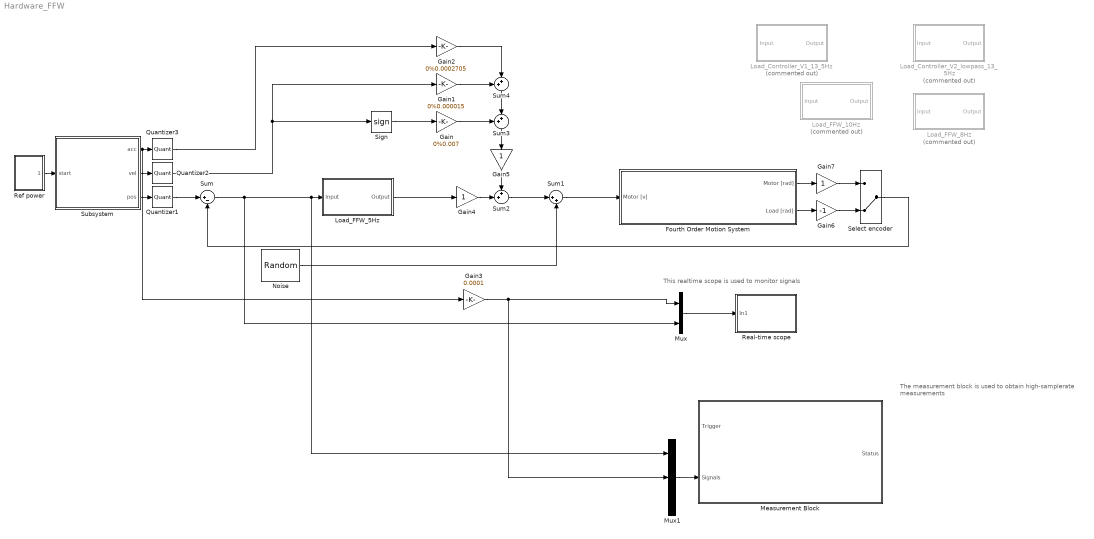
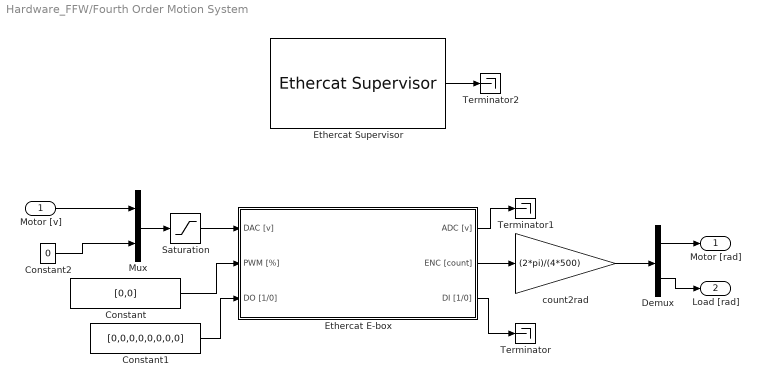
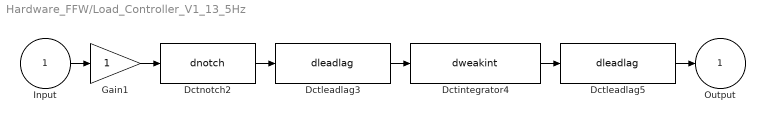
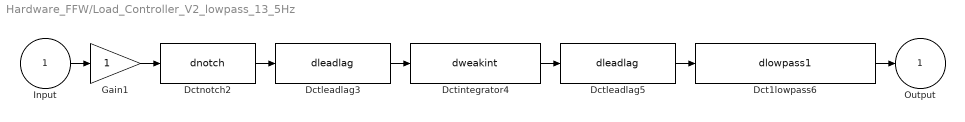
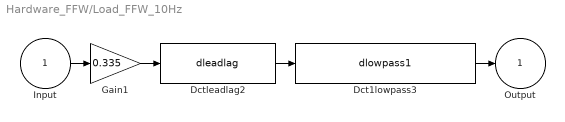
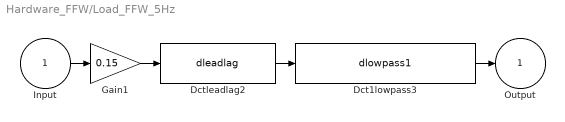
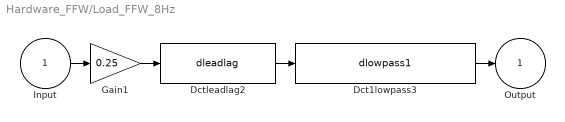
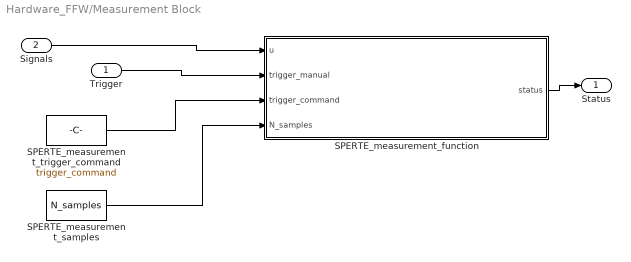
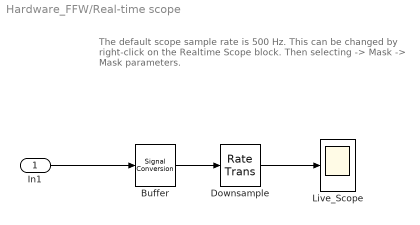
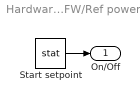
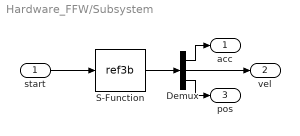
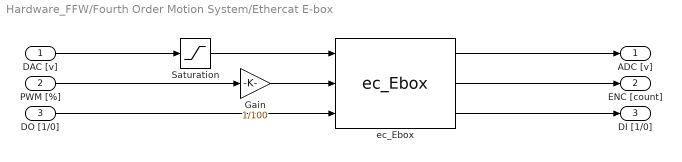
== matlab function Hardware_FFW/Measurement Block/SPERTE_measurement_function ==
function status = perform_measurement(u, trigger_manual, trigger_command, triggertype, N_samples)

%% Persistent variables
persistent fileID NF busy NS

% Init parameters
if isempty(NF)
    NF = int16(0);
end
if isempty(NS)
    NS = uint32(0);
end
if isempty(fileID)
    fileID = 0;
end
if isempty(busy)
    busy = uint8(0);
end

%% Check the triggers
if ( (triggertype == 0 && trigger_manual == 1) || (triggertype == 1 && trigger_command == 1) || (triggertype == 2 && (trigger_command == 1 || trigger_manual == 1) ) )
    if busy == 1
        % We are already busy, nothing to do
    else
        % We should start a new one
        fileID = fopen(sprintf('measurement_%d.bin',NF),'w');  
        NF = NF + 1;
        busy = uint8(1);
        NS = uint32(0);
    end
end

% We have started a measurement
if busy == 1
    if NS < N_samples 
        % Here we write the sample, in single precision float
        fwrite(fileID,u,'single');
        NS = NS + uint32(1);
    else
       % We have N samples already, we are done
       fclose(fileID);
       busy = uint8(0);
       NS = uint32(0);
    end
      
end
    % Output state
    status = uint8(busy);
end

/*
 * Hardware_FFW.c
 *
 * Academic License - for use in teaching, academic research, and meeting
 * course requirements at degree granting institutions only.  Not for
 * government, commercial, or other organizational use.
 *
 * Code generation for model "Hardware_FFW".
 *
 * Model version              : 14.20
 * Simulink Coder version : 25.1 (R2025a) 21-Nov-2024
 * C source code generated on : Tue Oct 21 10:39:02 2025
 *
 * Target selection: ert.tlc
 * Note: GRT includes extra infrastructure and instrumentation for prototyping
 * Embedded hardware selection: ARM Compatible->ARM Cortex-A (32-bit)
 * Code generation objectives: Unspecified
 * Validation result: Not run
 */

#include "Hardware_FFW.h"
#include "Hardware_FFW_types.h"
#include "rtwtypes.h"
#include <string.h>
#include <math.h>
#include "rt_nonfinite.h"
#include "Hardware_FFW_private.h"
#include <stddef.h>
#include <stdio.h>
#include <stdlib.h>

/* Named constants for MATLAB Function: '<S3>/SPERTE_measurement_function' */
#define Hardware_FFW_CALL_EVENT        (-1)

/* Block signals (default storage) */
B_Hardware_FFW_T Hardware_FFW_B;

/* Block states (default storage) */
DW_Hardware_FFW_T Hardware_FFW_DW;

/* Real-time model */
static RT_MODEL_Hardware_FFW_T Hardware_FFW_M_;
RT_MODEL_Hardware_FFW_T *const Hardware_FFW_M = &Hardware_FFW_M_;

/* Forward declaration for local functions */
static void Hardware_FFW_emxInit_char_T(emxArray_char_T_Hardware_FFW_T
  **pEmxArray, int32_T numDimensions);
static void Hardwa_emxEnsureCapacity_char_T(emxArray_char_T_Hardware_FFW_T
  *emxArray, int32_T oldNumel);
static void Hardware_FFW_emxFree_char_T(emxArray_char_T_Hardware_FFW_T
  **pEmxArray);
static int8_T Hardware_FFW_filedata(void);
static int8_T Hardware_FFW_cfopen(const emxArray_char_T_Hardware_FFW_T
  *cfilename, const char_T *cpermission);
static int32_T Hardware_FFW_cfclose(real_T fid);
static void rate_monotonic_scheduler(void);

/*
 * Writes out MAT-file header.  Returns success or failure.
 * Returns:
 * 0 - success
 * 1 - failure
 */
int_T rt_WriteMat4FileHeader(FILE *fp, int32_T m, int32_T n, const char *name)
{
  typedef enum { ELITTLE_ENDIAN, EBIG_ENDIAN } ByteOrder;

  int16_T one = 1;
  ByteOrder byteOrder = (*((int8_T *)&one)==1) ? ELITTLE_ENDIAN : EBIG_ENDIAN;
  int32_T type = (byteOrder == ELITTLE_ENDIAN) ? 0: 1000;
  int32_T imagf = 0;
  int32_T name_len = (int32_T)strlen(name) + 1;
  if ((fwrite(&type, sizeof(int32_T), 1, fp) == 0) ||
      (fwrite(&m, sizeof(int32_T), 1, fp) == 0) ||
      (fwrite(&n, sizeof(int32_T), 1, fp) == 0) ||
      (fwrite(&imagf, sizeof(int32_T), 1, fp) == 0) ||
      (fwrite(&name_len, sizeof(int32_T), 1, fp) == 0) ||
      (fwrite(name, sizeof(char), name_len, fp) == 0)) {
    return(1);
  } else {
    return(0);
  }
}                                      /* end rt_WriteMat4FileHeader */

/*
 * Set which subrates need to run this base step (base rate always runs).
 * This function must be called prior to calling the model step function
 * in order to remember which rates need to run this base step.  The
 * buffering of events allows for overlapping preemption.
 */
void Hardware_FFW_SetEventsForThisBaseStep(boolean_T *eventFlags)
{
  /* Task runs when its counter is zero, computed via rtmStepTask macro */
  eventFlags[2] = ((boolean_T)rtmStepTask(Hardware_FFW_M, 2));
}

/*
 *         This function updates active task flag for each subrate
 *         and rate transition flags for tasks that exchange data.
 *         The function assumes rate-monotonic multitasking scheduler.
 *         The function must be called at model base rate so that
 *         the generated code self-manages all its subrates and rate
 *         transition flags.
 */
static void rate_monotonic_scheduler(void)
{
  /* To ensure a deterministic data transfer between two rates,
   * data is transferred at the priority of a fast task and the frequency
   * of the slow task.  The following flags indicate when the data transfer
   * happens.  That is, a rate interaction flag is set true when both rates
   * will run, and false otherwise.
   */

  /* tid 1 shares data with slower tid rate: 2 */
  if (Hardware_FFW_M->Timing.TaskCounters.TID[1] == 0) {
    Hardware_FFW_M->Timing.RateInteraction.TID1_2 =
      (Hardware_FFW_M->Timing.TaskCounters.TID[2] == 0);

    /* update PerTaskSampleHits matrix for non-inline sfcn */
    Hardware_FFW_M->Timing.perTaskSampleHits[5] =
      Hardware_FFW_M->Timing.RateInteraction.TID1_2;
  }

  /* Compute which subrates run during the next base time step.  Subrates
   * are an integer multiple of the base rate counter.  Therefore, the subtask
   * counter is reset when it reaches its limit (zero means run).
   */
  (Hardware_FFW_M->Timing.TaskCounters.TID[2])++;
  if ((Hardware_FFW_M->Timing.TaskCounters.TID[2]) > 7) {/* Sample time: [0.002s, 0.0s] */
    Hardware_FFW_M->Timing.TaskCounters.TID[2] = 0;
  }
}

real_T rt_urand_Upu32_Yd_f_pw_snf(uint32_T *u)
{
  uint32_T hi;
  uint32_T lo;

  /* Uniform random number generator (random number between 0 and 1)

     #define IA      16807                      magic multiplier = 7^5
     #define IM      2147483647                 modulus = 2^31-1
     #define IQ      127773                     IM div IA
     #define IR      2836                       IM modulo IA
     #define S       4.656612875245797e-10      reciprocal of 2^31-1
     test = IA * (seed % IQ) - IR * (seed/IQ)
     seed = test < 0 ? (test + IM) : test
     return (seed*S)
   */
  lo = *u % 127773U * 16807U;
  hi = *u / 127773U * 2836U;
  if (lo < hi) {
    *u = 2147483647U - (hi - lo);
  } else {
    *u = lo - hi;
  }

  return (real_T)*u * 4.6566128752457969E-10;
}

real_T rt_nrand_Upu32_Yd_f_pw_snf(uint32_T *u)
{
  real_T si;
  real_T sr;
  real_T y;

  /* Normal (Gaussian) random number generator */
  do {
    sr = 2.0 * rt_urand_Upu32_Yd_f_pw_snf(u) - 1.0;
    si = 2.0 * rt_urand_Upu32_Yd_f_pw_snf(u) - 1.0;
    si = sr * sr + si * si;
  } while (si > 1.0);

  y = sqrt(-2.0 * log(si) / si) * sr;
  return y;
}

real_T rt_roundd_snf(real_T u)
{
  real_T y;
  if (fabs(u) < 4.503599627370496E+15) {
    if (u >= 0.5) {
      y = floor(u + 0.5);
    } else if (u > -0.5) {
      y = u * 0.0;
    } else {
      y = ceil(u - 0.5);
    }
  } else {
    y = u;
  }

  return y;
}

static void Hardware_FFW_emxInit_char_T(emxArray_char_T_Hardware_FFW_T
  **pEmxArray, int32_T numDimensions)
{
  emxArray_char_T_Hardware_FFW_T *emxArray;
  int32_T i;
  *pEmxArray = (emxArray_char_T_Hardware_FFW_T *)malloc(sizeof
    (emxArray_char_T_Hardware_FFW_T));
  emxArray = *pEmxArray;
  emxArray->data = (char_T *)NULL;
  emxArray->numDimensions = numDimensions;
  emxArray->size = (int32_T *)malloc(sizeof(int32_T) * (uint32_T)numDimensions);
  emxArray->allocatedSize = 0;
  emxArray->canFreeData = true;
  for (i = 0; i < numDimensions; i++) {
    emxArray->size[i] = 0;
  }
}

static void Hardwa_emxEnsureCapacity_char_T(emxArray_char_T_Hardware_FFW_T
  *emxArray, int32_T oldNumel)
{
  int32_T i;
  int32_T newNumel;
  void *newData;
  if (oldNumel < 0) {
    oldNumel = 0;
  }

  newNumel = 1;
  for (i = 0; i < emxArray->numDimensions; i++) {
    newNumel *= emxArray->size[i];
  }

  if (newNumel > emxArray->allocatedSize) {
    i = emxArray->allocatedSize;
    if (i < 16) {
      i = 16;
    }

    while (i < newNumel) {
      if (i > 1073741823) {
        i = MAX_int32_T;
      } else {
        i <<= 1;
      }
    }

    newData = malloc((uint32_T)i * sizeof(char_T));
    if (emxArray->data != NULL) {
      memcpy(newData, emxArray->data, sizeof(char_T) * (uint32_T)oldNumel);
      if (emxArray->canFreeData) {
        free(emxArray->data);
      }
    }

    emxArray->data = (char_T *)newData;
    emxArray->allocatedSize = i;
    emxArray->canFreeData = true;
  }
}

static void Hardware_FFW_emxFree_char_T(emxArray_char_T_Hardware_FFW_T
  **pEmxArray)
{
  if (*pEmxArray != (emxArray_char_T_Hardware_FFW_T *)NULL) {
    if (((*pEmxArray)->data != (char_T *)NULL) && (*pEmxArray)->canFreeData) {
      free((*pEmxArray)->data);
    }

    free((*pEmxArray)->size);
    free(*pEmxArray);
    *pEmxArray = (emxArray_char_T_Hardware_FFW_T *)NULL;
  }
}

/* Function for MATLAB Function: '<S3>/SPERTE_measurement_function' */
static int8_T Hardware_FFW_filedata(void)
{
  int32_T k;
  int8_T f;
  boolean_T exitg1;
  f = 0;
  k = 1;
  exitg1 = false;
  while ((!exitg1) && (k - 1 < 20)) {
    if (Hardware_FFW_DW.eml_openfiles[(int8_T)k - 1] == NULL) {
      f = (int8_T)k;
      exitg1 = true;
    } else {
      k++;
    }
  }

  return f;
}

/* Function for MATLAB Function: '<S3>/SPERTE_measurement_function' */
static int8_T Hardware_FFW_cfopen(const emxArray_char_T_Hardware_FFW_T
  *cfilename, const char_T *cpermission)
{
  FILE *filestar;
  emxArray_char_T_Hardware_FFW_T *ccfilename;
  int32_T loop_ub;
  int8_T fileid;
  int8_T j;
  fileid = -1;
  j = Hardware_FFW_filedata();
  if (j >= 1) {
    Hardware_FFW_emxInit_char_T(&ccfilename, 2);
    loop_ub = ccfilename->size[0] * ccfilename->size[1];
    ccfilename->size[0] = 1;
    ccfilename->size[1] = cfilename->size[1] + 1;
    Hardwa_emxEnsureCapacity_char_T(ccfilename, loop_ub);
    loop_ub = cfilename->size[1];
    if (loop_ub - 1 >= 0) {
      memcpy(&ccfilename->data[0], &cfilename->data[0], (uint32_T)loop_ub *
             sizeof(char_T));
    }

    ccfilename->data[cfilename->size[1]] = '\x00';
    filestar = fopen(&ccfilename->data[0], cpermission);
    Hardware_FFW_emxFree_char_T(&ccfilename);
    if (filestar != NULL) {
      Hardware_FFW_DW.eml_openfiles[j - 1] = filestar;
      Hardware_FFW_DW.eml_autoflush[j - 1] = true;
      loop_ub = j + 2;
      if (j + 2 > 127) {
        loop_ub = 127;
      }

      fileid = (int8_T)loop_ub;
    }
  }

  return fileid;
}

/* Function for MATLAB Function: '<S3>/SPERTE_measurement_function' */
static int32_T Hardware_FFW_cfclose(real_T fid)
{
  FILE *f;
  int32_T cst;
  int32_T st;
  int8_T b_fileid;
  int8_T fileid;
  st = -1;
  fileid = (int8_T)fid;
  if (((int8_T)fid < 0) || (fid != (int8_T)fid)) {
    fileid = -1;
  }

  b_fileid = fileid;
  if (fileid < 0) {
    b_fileid = -1;
  }

  if (b_fileid >= 3) {
    f = Hardware_FFW_DW.eml_openfiles[b_fileid - 3];
  } else if (b_fileid == 0) {
    f = stdin;
  } else if (b_fileid == 1) {
    f = stdout;
  } else if (b_fileid == 2) {
    f = stderr;
  } else {
    f = NULL;
  }

  if ((f != NULL) && (fileid >= 3)) {
    cst = fclose(f);
    if (cst == 0) {
      st = 0;
      Hardware_FFW_DW.eml_openfiles[fileid - 3] = NULL;
      Hardware_FFW_DW.eml_autoflush[fileid - 3] = true;
    }
  }

  return st;
}

/* Model step function for TID0 */
void Hardware_FFW_step0(void)          /* Sample time: [0.0s, 0.0s] */
{
  FILE *f;
  size_t bytesOutSizet;
  emxArray_char_T_Hardware_FFW_T *str;
  emxArray_char_T_Hardware_FFW_T *str_0;
  real_T rtb_Quantizer1;
  real_T tmp;
  int32_T nbytes;
  int32_T tmp_0;
  real32_T xout[3];
  int8_T b_fileid;
  boolean_T autoflush;

  {                                    /* Sample time: [0.0s, 0.0s] */
    rate_monotonic_scheduler();
  }

  /* Constant: '<S5>/Start setpoint' */
  Hardware_FFW_B.Startsetpoint = Hardware_FFW_P.Refpower_stat;

  /* S-Function (ref3b): '<S6>/S-Function' */

  /* Level2 S-Function Block: '<S6>/S-Function' (ref3b) */
  {
    SimStruct *rts = Hardware_FFW_M->childSfunctions[0];
    sfcnOutputs(rts,0);
  }

  /* S-Function (getTiming): '<S8>/S-Function1' */

  /* Level2 S-Function Block: '<S8>/S-Function1' (getTiming) */
  {
    SimStruct *rts = Hardware_FFW_M->childSfunctions[1];
    sfcnOutputs(rts,0);
  }

  /* ToFile: '<S8>/To File ' */
  if (1 ) {
    {
      if (!(++Hardware_FFW_DW.ToFile_IWORK.Decimation % 1) &&
          (Hardware_FFW_DW.ToFile_IWORK.Count * (1 + 1)) + 1 < 100000000 ) {
        FILE *fp = (FILE *) Hardware_FFW_DW.ToFile_PWORK.FilePtr;
        if (fp != (NULL)) {
          real_T u[1 + 1];
          Hardware_FFW_DW.ToFile_IWORK.Decimation = 0;
          u[0] = Hardware_FFW_M->Timing.t[1];
          u[1] = Hardware_FFW_B.SFunction1;
          if (fwrite(u, sizeof(real_T), 1 + 1, fp) != 1 + 1) {
            rtmSetErrorStatus(Hardware_FFW_M,
                              "Error writing to MAT-file Ts_meas.mat");
            return;
          }

          if (((++Hardware_FFW_DW.ToFile_IWORK.Count) * (1 + 1))+1 >= 100000000)
          {
            (void)fprintf(stdout,
                          "*** The ToFile block will stop logging data before\n"
                          "    the simulation has ended, because it has reached\n"
                          "    the maximum number of elements (100000000)\n"
                          "    allowed in MAT-file Ts_meas.mat.\n");
          }
        }
      }
    }
  }

  /* S-Function (ec_Supervisor): '<S8>/S-Function' */

  /* Level2 S-Function Block: '<S8>/S-Function' (ec_Supervisor) */
  {
    SimStruct *rts = Hardware_FFW_M->childSfunctions[2];
    sfcnOutputs(rts,0);
  }

  /* S-Function (ec_Ebox): '<S7>/ec_Ebox' */

  /* Level2 S-Function Block: '<S7>/ec_Ebox' (ec_Ebox) */
  {
    SimStruct *rts = Hardware_FFW_M->childSfunctions[3];
    sfcnOutputs(rts,0);
  }

  /* Gain: '<S7>/Gain' incorporates:
   *  Constant: '<S1>/Constant'
   */
  Hardware_FFW_B.Gain[0] = Hardware_FFW_P.Gain_Gain *
    Hardware_FFW_P.Constant_Value[0];
  Hardware_FFW_B.Gain[1] = Hardware_FFW_P.Gain_Gain *
    Hardware_FFW_P.Constant_Value[1];

  /* Quantizer: '<Root>/Quantizer2' */
  rtb_Quantizer1 = rt_roundd_snf(Hardware_FFW_B.SFunction[1] /
    Hardware_FFW_P.Quantizer2_Interval) * Hardware_FFW_P.Quantizer2_Interval;

  /* ManualSwitch: '<Root>/Select encoder' incorporates:
   *  Gain: '<Root>/Gain6'
   *  Gain: '<Root>/Gain7'
   *  Gain: '<S1>/count2rad'
   */
  if (Hardware_FFW_P.Selectencoder_CurrentSetting == 1) {
    tmp = Hardware_FFW_P.count2rad_Gain * Hardware_FFW_B.ec_Ebox_o2[0] *
      Hardware_FFW_P.Gain7_Gain;
  } else {
    tmp = Hardware_FFW_P.count2rad_Gain * Hardware_FFW_B.ec_Ebox_o2[1] *
      Hardware_FFW_P.Gain6_Gain;
  }

  /* Sum: '<Root>/Sum' incorporates:
   *  ManualSwitch: '<Root>/Select encoder'
   *  Quantizer: '<Root>/Quantizer1'
   */
  Hardware_FFW_B.Sum = rt_roundd_snf(Hardware_FFW_B.SFunction[2] /
    Hardware_FFW_P.Quantizer1_Interval) * Hardware_FFW_P.Quantizer1_Interval -
    tmp;

  /* Gain: '<S2>/Gain1' */
  Hardware_FFW_B.Gain1 = Hardware_FFW_P.Gain1_Gain_a * Hardware_FFW_B.Sum;

  /* S-Function (dleadlag): '<S2>/Dctleadlag2' */

  /* Level2 S-Function Block: '<S2>/Dctleadlag2' (dleadlag) */
  {
    SimStruct *rts = Hardware_FFW_M->childSfunctions[4];
    sfcnOutputs(rts,0);
  }

  /* S-Function (dlowpass1): '<S2>/Dct1lowpass3' */

  /* Level2 S-Function Block: '<S2>/Dct1lowpass3' (dlowpass1) */
  {
    SimStruct *rts = Hardware_FFW_M->childSfunctions[5];
    sfcnOutputs(rts,0);
  }

  /* Gain: '<Root>/Gain4' */
  Hardware_FFW_B.Gain4 = Hardware_FFW_P.Gain4_Gain * Hardware_FFW_B.Dct1lowpass3;

  /* RandomNumber: '<Root>/Noise' */
  Hardware_FFW_B.Noise = Hardware_FFW_DW.NextOutput;

  /* Signum: '<Root>/Sign' */
  if (rtIsNaN(rtb_Quantizer1)) {
    tmp = (rtNaN);
  } else if (rtb_Quantizer1 < 0.0) {
    tmp = -1.0;
  } else {
    tmp = (rtb_Quantizer1 > 0.0);
  }

  /* Sum: '<Root>/Sum1' incorporates:
   *  Gain: '<Root>/Gain'
   *  Gain: '<Root>/Gain1'
   *  Gain: '<Root>/Gain2'
   *  Gain: '<Root>/Gain5'
   *  Quantizer: '<Root>/Quantizer3'
   *  Signum: '<Root>/Sign'
   *  Sum: '<Root>/Sum2'
   *  Sum: '<Root>/Sum3'
   *  Sum: '<Root>/Sum4'
   */
  rtb_Quantizer1 = (((rt_roundd_snf(Hardware_FFW_B.SFunction[0] /
    Hardware_FFW_P.Quantizer3_Interval) * Hardware_FFW_P.Quantizer3_Interval *
                      Hardware_FFW_P.Gain2_Gain + Hardware_FFW_P.Gain1_Gain *
                      rtb_Quantizer1) + Hardware_FFW_P.Gain_Gain_h * tmp) *
                    Hardware_FFW_P.Gain5_Gain + Hardware_FFW_B.Gain4) +
    Hardware_FFW_B.Noise;

  /* Saturate: '<S1>/Saturation' */
  if (rtb_Quantizer1 > Hardware_FFW_P.Saturation_UpperSat) {
    rtb_Quantizer1 = Hardware_FFW_P.Saturation_UpperSat;
  } else if (rtb_Quantizer1 < Hardware_FFW_P.Saturation_LowerSat) {
    rtb_Quantizer1 = Hardware_FFW_P.Saturation_LowerSat;
  }

  /* Saturate: '<S7>/Saturation' */
  if (rtb_Quantizer1 > Hardware_FFW_P.Saturation_UpperSat_d) {
    /* Saturate: '<S7>/Saturation' */
    Hardware_FFW_B.Saturation[0] = Hardware_FFW_P.Saturation_UpperSat_d;
  } else if (rtb_Quantizer1 < Hardware_FFW_P.Saturation_LowerSat_e) {
    /* Saturate: '<S7>/Saturation' */
    Hardware_FFW_B.Saturation[0] = Hardware_FFW_P.Saturation_LowerSat_e;
  } else {
    /* Saturate: '<S7>/Saturation' */
    Hardware_FFW_B.Saturation[0] = rtb_Quantizer1;
  }

  /* Saturate: '<S1>/Saturation' incorporates:
   *  Constant: '<S1>/Constant2'
   */
  if (Hardware_FFW_P.Constant2_Value > Hardware_FFW_P.Saturation_UpperSat) {
    rtb_Quantizer1 = Hardware_FFW_P.Saturation_UpperSat;
  } else if (Hardware_FFW_P.Constant2_Value < Hardware_FFW_P.Saturation_LowerSat)
  {
    rtb_Quantizer1 = Hardware_FFW_P.Saturation_LowerSat;
  } else {
    rtb_Quantizer1 = Hardware_FFW_P.Constant2_Value;
  }

  /* Saturate: '<S7>/Saturation' */
  if (rtb_Quantizer1 > Hardware_FFW_P.Saturation_UpperSat_d) {
    /* Saturate: '<S7>/Saturation' */
    Hardware_FFW_B.Saturation[1] = Hardware_FFW_P.Saturation_UpperSat_d;
  } else if (rtb_Quantizer1 < Hardware_FFW_P.Saturation_LowerSat_e) {
    /* Saturate: '<S7>/Saturation' */
    Hardware_FFW_B.Saturation[1] = Hardware_FFW_P.Saturation_LowerSat_e;
  } else {
    /* Saturate: '<S7>/Saturation' */
    Hardware_FFW_B.Saturation[1] = rtb_Quantizer1;
  }

  /* Gain: '<Root>/Gain3' */
  Hardware_FFW_B.Gain3 = Hardware_FFW_P.Gain3_Gain * Hardware_FFW_B.SFunction[0];

  /* MATLAB Function: '<S3>/SPERTE_measurement_function' incorporates:
   *  Constant: '<S3>/SPERTE_measurement_samples'
   *  Constant: '<S3>/SPERTE_measurement_trigger_command'
   *  SignalConversion generated from: '<S9>/ SFunction '
   */
  Hardware_FFW_DW.sfEvent = Hardware_FFW_CALL_EVENT;
  if ((((Hardware_FFW_P.MeasurementBlock_triggertype == 1) &&
        (Hardware_FFW_P.MeasurementBlock_trigger_comman == 1)) ||
       ((Hardware_FFW_P.MeasurementBlock_triggertype == 2) &&
        (Hardware_FFW_P.MeasurementBlock_trigger_comman == 1))) &&
      (Hardware_FFW_DW.busy != 1)) {
    nbytes = (int32_T)snprintf(NULL, 0, "measurement_%d.bin", Hardware_FFW_DW.NF)
      + 1;
    Hardware_FFW_emxInit_char_T(&str, 2);
    tmp_0 = str->size[0] * str->size[1];
    str->size[0] = 1;
    str->size[1] = nbytes;
    Hardwa_emxEnsureCapacity_char_T(str, tmp_0);
    snprintf(&str->data[0], (size_t)nbytes, "measurement_%d.bin",
             Hardware_FFW_DW.NF);
    if (nbytes - 1 < 1) {
      nbytes = -1;
    } else {
      nbytes -= 2;
    }

    Hardware_FFW_emxInit_char_T(&str_0, 2);
    tmp_0 = str_0->size[0] * str_0->size[1];
    str_0->size[0] = 1;
    str_0->size[1] = nbytes + 1;
    Hardwa_emxEnsureCapacity_char_T(str_0, tmp_0);
    if (nbytes >= 0) {
      memcpy(&str_0->data[0], &str->data[0], (uint32_T)(nbytes + 1) * sizeof
             (char_T));
    }

    Hardware_FFW_emxFree_char_T(&str);
    b_fileid = Hardware_FFW_cfopen(str_0, "wb");
    Hardware_FFW_emxFree_char_T(&str_0);
    Hardware_FFW_DW.fileID = b_fileid;
    nbytes = Hardware_FFW_DW.NF + 1;
    if (Hardware_FFW_DW.NF + 1 > 32767) {
      nbytes = 32767;
    }

    Hardware_FFW_DW.NF = (int16_T)nbytes;
    Hardware_FFW_DW.busy = 1U;
    Hardware_FFW_DW.NS = 0U;
  }

  if (Hardware_FFW_DW.busy == 1) {
    if (Hardware_FFW_DW.NS < Hardware_FFW_P.MeasurementBlock_N_samples) {
      b_fileid = (int8_T)Hardware_FFW_DW.fileID;
      if (((int8_T)Hardware_FFW_DW.fileID < 0) || (Hardware_FFW_DW.fileID !=
           (int8_T)Hardware_FFW_DW.fileID)) {
        b_fileid = -1;
      }

      if (b_fileid >= 3) {
        autoflush = Hardware_FFW_DW.eml_autoflush[b_fileid - 3];
        f = Hardware_FFW_DW.eml_openfiles[b_fileid - 3];
      } else if (b_fileid == 0) {
        f = stdin;
        autoflush = true;
      } else if (b_fileid == 1) {
        f = stdout;
        autoflush = true;
      } else if (b_fileid == 2) {
        f = stderr;
        autoflush = true;
      } else {
        f = NULL;
        autoflush = true;
      }

      if (!(Hardware_FFW_DW.fileID != 0.0)) {
        f = NULL;
      }

      if (!(f == NULL)) {
        xout[0] = (real32_T)Hardware_FFW_B.Sum;
        xout[1] = (real32_T)Hardware_FFW_B.Gain3;
        xout[2] = (real32_T)0.0;
        bytesOutSizet = fwrite(&xout[0], sizeof(real32_T), (size_t)3, f);
        if (((real_T)bytesOutSizet > 0.0) && autoflush) {
          fflush(f);
        }
      }

      Hardware_FFW_DW.NS++;
    } else {
      Hardware_FFW_cfclose(Hardware_FFW_DW.fileID);
      Hardware_FFW_DW.busy = 0U;
      Hardware_FFW_DW.NS = 0U;
    }
  }

  /* End of MATLAB Function: '<S3>/SPERTE_measurement_function' */

  /* RateTransition: '<S4>/Downsample' */
  if (Hardware_FFW_M->Timing.RateInteraction.TID1_2) {
    Hardware_FFW_DW.Downsample_Buffer[0] = Hardware_FFW_B.Gain3;
    Hardware_FFW_DW.Downsample_Buffer[1] = Hardware_FFW_B.Sum;
  }

  /* End of RateTransition: '<S4>/Downsample' */

  /* Constant: '<S1>/Constant1' */
  memcpy(&Hardware_FFW_B.Constant1[0], &Hardware_FFW_P.Constant1_Value[0],
         sizeof(real_T) << 3U);

  /* Update for RandomNumber: '<Root>/Noise' */
  Hardware_FFW_DW.NextOutput = rt_nrand_Upu32_Yd_f_pw_snf
    (&Hardware_FFW_DW.RandSeed) * Hardware_FFW_P.Noise_StdDev +
    Hardware_FFW_P.Noise_Mean;

  /* Update absolute time */
  /* The "clockTick0" counts the number of times the code of this task has
   * been executed. The absolute time is the multiplication of "clockTick0"
   * and "Timing.stepSize0". Size of "clockTick0" ensures timer will not
   * overflow during the application lifespan selected.
   * Timer of this task consists of two 32 bit unsigned integers.
   * The two integers represent the low bits Timing.clockTick0 and the high bits
   * Timing.clockTickH0. When the low bit overflows to 0, the high bits increment.
   */
  if (!(++Hardware_FFW_M->Timing.clockTick0)) {
    ++Hardware_FFW_M->Timing.clockTickH0;
  }

  Hardware_FFW_M->Timing.t[0] = Hardware_FFW_M->Timing.clockTick0 *
    Hardware_FFW_M->Timing.stepSize0 + Hardware_FFW_M->Timing.clockTickH0 *
    Hardware_FFW_M->Timing.stepSize0 * 4294967296.0;

  /* Update absolute time */
  /* The "clockTick1" counts the number of times the code of this task has
   * been executed. The absolute time is the multiplication of "clockTick1"
   * and "Timing.stepSize1". Size of "clockTick1" ensures timer will not
   * overflow during the application lifespan selected.
   * Timer of this task consists of two 32 bit unsigned integers.
   * The two integers represent the low bits Timing.clockTick1 and the high bits
   * Timing.clockTickH1. When the low bit overflows to 0, the high bits increment.
   */
  if (!(++Hardware_FFW_M->Timing.clockTick1)) {
    ++Hardware_FFW_M->Timing.clockTickH1;
  }

  Hardware_FFW_M->Timing.t[1] = Hardware_FFW_M->Timing.clockTick1 *
    Hardware_FFW_M->Timing.stepSize1 + Hardware_FFW_M->Timing.clockTickH1 *
    Hardware_FFW_M->Timing.stepSize1 * 4294967296.0;
}

/* Model step function for TID2 */
void Hardware_FFW_step2(void)          /* Sample time: [0.002s, 0.0s] */
{
  /* RateTransition: '<S4>/Downsample' */
  Hardware_FFW_B.Downsample[0] = Hardware_FFW_DW.Downsample_Buffer[0];
  Hardware_FFW_B.Downsample[1] = Hardware_FFW_DW.Downsample_Buffer[1];

  /* Update absolute time */
  /* The "clockTick2" counts the number of times the code of this task has
   * been executed. The resolution of this integer timer is 0.002, which is the step size
   * of the task. Size of "clockTick2" ensures timer will not overflow during the
   * application lifespan selected.
   * Timer of this task consists of two 32 bit unsigned integers.
   * The two integers represent the low bits Timing.clockTick2 and the high bits
   * Timing.clockTickH2. When the low bit overflows to 0, the high bits increment.
   */
  Hardware_FFW_M->Timing.clockTick2++;
  if (!Hardware_FFW_M->Timing.clockTick2) {
    Hardware_FFW_M->Timing.clockTickH2++;
  }
}

/* Use this function only if you need to maintain compatibility with an existing static main program. */
void Hardware_FFW_step(int_T tid)
{
  switch (tid) {
   case 0 :
    Hardware_FFW_step0();
    break;

   case 2 :
    Hardware_FFW_step2();
    break;

   default :
    /* do nothing */
    break;
  }
}
